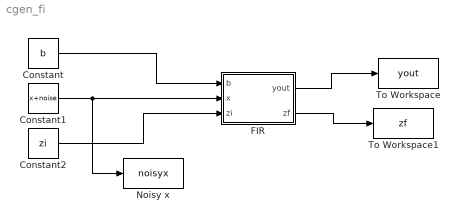
== matlab function cgen_fi/FIR ==
function [yout,zf] = dffirdemo(b, x, zi) %#codegen
%codegen_fi doc model example
%Initialize the output signal yout and the final conditions zf
Ty = numerictype(1,12,8);
yout = fi(zeros(size(x)),'numerictype',Ty);
zf = zi;

% FIR filter code
for k=1:length(x);
  % Update the states: z = [x(k);z(1:end-1)]  
  zf(:) = [x(k);zf(1:end-1)];
  % Form the output: y(k) = b*z
  yout(k) = b*zf;
end

% Plot the outputs only in simulation.
% This does not generate C code.
figure;
subplot(211);plot(x); title('Noisy Signal');grid;
subplot(212);plot(yout); title('Filtered Signal');grid;

/*
 * cgen_fi.c
 *
 * Academic License - for use in teaching, academic research, and meeting
 * course requirements at degree granting institutions only.  Not for
 * government, commercial, or other organizational use.
 *
 * Code generation for model "cgen_fi".
 *
 * Model version              : 1.3
 * Simulink Coder version : 8.14 (R2018a) 06-Feb-2018
 * C source code generated on : Thu Apr 26 13:32:58 2018
 *
 * Target selection: grt.tlc
 * Note: GRT includes extra infrastructure and instrumentation for prototyping
 * Embedded hardware selection: Intel->x86-64 (Windows64)
 * Code generation objectives: Unspecified
 * Validation result: Not run
 */

#include "cgen_fi.h"
#include "cgen_fi_private.h"

/* Block signals (default storage) */
B_cgen_fi_T cgen_fi_B;

/* Block states (default storage) */
DW_cgen_fi_T cgen_fi_DW;

/* Real-time model */
RT_MODEL_cgen_fi_T cgen_fi_M_;
RT_MODEL_cgen_fi_T *const cgen_fi_M = &cgen_fi_M_;

/* Model step function */
void cgen_fi_step(void)
{
  /* local block i/o variables */
  int16_T rtb_zf[13];
  int32_T k;
  int32_T c;
  int16_T tmp[13];
  int32_T b_k;
  int16_T tmp_0;

  /* ToWorkspace: '<Root>/Noisy x' incorporates:
   *  Constant: '<Root>/Constant1'
   */
  rt_UpdateLogVar((LogVar *)(LogVar*) (cgen_fi_DW.Noisyx_PWORK.LoggedData),
                  &cgen_fi_P.Constant1_Value[0], 0);

  /* MATLAB Function: '<Root>/FIR' incorporates:
   *  Constant: '<Root>/Constant'
   *  Constant: '<Root>/Constant1'
   *  Constant: '<Root>/Constant2'
   */
  for (c = 0; c < 13; c++) {
    rtb_zf[c] = cgen_fi_P.zi[c];
  }

  for (k = 0; k < 4001; k++) {
    tmp_0 = (int16_T)(cgen_fi_P.Constant1_Value[k] >> 8);
    tmp[0] = (int16_T)((tmp_0 & 2048U) != 0U ? (int32_T)(int16_T)(tmp_0 | -2048)
                       : (int32_T)(int16_T)(tmp_0 & 2047));
    for (c = 0; c < 12; c++) {
      tmp_0 = (int16_T)(rtb_zf[c] << 8);
      tmp_0 = (int16_T)(((tmp_0 & 2048U) != 0U ? (int32_T)(int16_T)(tmp_0 |
        -2048) : (int32_T)(int16_T)(tmp_0 & 2047)) >> 8);
      tmp[c + 1] = (int16_T)((tmp_0 & 2048U) != 0U ? (int32_T)(int16_T)(tmp_0 |
        -2048) : (int32_T)(int16_T)(tmp_0 & 2047));
    }

    c = 0;
    for (b_k = 0; b_k < 13; b_k++) {
      rtb_zf[b_k] = tmp[b_k];
      c += cgen_fi_P.b[b_k] * rtb_zf[b_k];
    }

    tmp_0 = (int16_T)(c >> 4);
    cgen_fi_B.yout[k] = (int16_T)((tmp_0 & 2048U) != 0U ? (int32_T)(int16_T)
      (tmp_0 | -2048) : (int32_T)(int16_T)(tmp_0 & 2047));
  }

  /* End of MATLAB Function: '<Root>/FIR' */

  /* ToWorkspace: '<Root>/To Workspace' */
  rt_UpdateLogVar((LogVar *)(LogVar*) (cgen_fi_DW.ToWorkspace_PWORK.LoggedData),
                  &cgen_fi_B.yout[0], 0);

  /* ToWorkspace: '<Root>/To Workspace1' */
  rt_UpdateLogVar((LogVar *)(LogVar*) (cgen_fi_DW.ToWorkspace1_PWORK.LoggedData),
                  &rtb_zf[0], 0);

  /* Matfile logging */
  rt_UpdateTXYLogVars(cgen_fi_M->rtwLogInfo, (&cgen_fi_M->Timing.taskTime0));

  /* signal main to stop simulation */
  {                                    /* Sample time: [1.0s, 0.0s] */
    if ((rtmGetTFinal(cgen_fi_M)!=-1) &&
        !((rtmGetTFinal(cgen_fi_M)-cgen_fi_M->Timing.taskTime0) >
          cgen_fi_M->Timing.taskTime0 * (DBL_EPSILON))) {
      rtmSetErrorStatus(cgen_fi_M, "Simulation finished");
    }
  }

  /* Update absolute time for base rate */
  /* The "clockTick0" counts the number of times the code of this task has
   * been executed. The absolute time is the multiplication of "clockTick0"
   * and "Timing.stepSize0". Size of "clockTick0" ensures timer will not
   * overflow during the application lifespan selected.
   * Timer of this task consists of two 32 bit unsigned integers.
   * The two integers represent the low bits Timing.clockTick0 and the high bits
   * Timing.clockTickH0. When the low bit overflows to 0, the high bits increment.
   */
  if (!(++cgen_fi_M->Timing.clockTick0)) {
    ++cgen_fi_M->Timing.clockTickH0;
  }

  cgen_fi_M->Timing.taskTime0 = cgen_fi_M->Timing.clockTick0 *
    cgen_fi_M->Timing.stepSize0 + cgen_fi_M->Timing.clockTickH0 *
    cgen_fi_M->Timing.stepSize0 * 4294967296.0;
}
